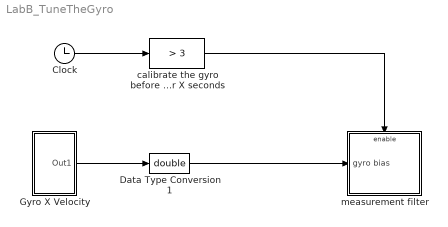
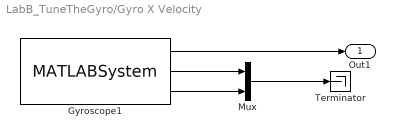
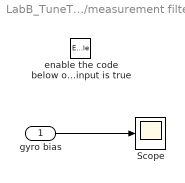
/*
 * Academic License - for use in teaching, academic research, and meeting
 * course requirements at degree granting institutions only.  Not for
 * government, commercial, or other organizational use.
 *
 * File: LabB_TuneTheGyro.c
 *
 * Code generated for Simulink model 'LabB_TuneTheGyro'.
 *
 * Model version                  : 2.1
 * Simulink Coder version         : 9.4 (R2020b) 29-Jul-2020
 * C/C++ source code generated on : Tue Dec 14 13:28:14 2021
 *
 * Target selection: ert.tlc
 * Embedded hardware selection: Atmel->AVR
 * Code generation objectives: Unspecified
 * Validation result: Not run
 */

#include "LabB_TuneTheGyro.h"
#include "LabB_TuneTheGyro_private.h"
#include "LabB_TuneTheGyro_dt.h"

/* Block signals (default storage) */
BlockIO_LabB_TuneTheGyro LabB_TuneTheGyro_B;

/* Block states (default storage) */
D_Work_LabB_TuneTheGyro LabB_TuneTheGyro_DWork;

/* Real-time model */
static RT_MODEL_LabB_TuneTheGyro LabB_TuneTheGyro_M_;
RT_MODEL_LabB_TuneTheGyro *const LabB_TuneTheGyro_M = &LabB_TuneTheGyro_M_;

/* Model step function */
void LabB_TuneTheGyro_step(void)
{
  int16_T out[3];

  /* Reset subsysRan breadcrumbs */
  srClearBC(LabB_TuneTheGyro_DWork.measurementfilter_SubsysRanBC);

  /* MATLABSystem: '<S1>/Gyroscope1' */
  MPU6050Gyro_Read(&out[0]);

  /* DataTypeConversion: '<Root>/Data Type  Conversion1' incorporates:
   *  MATLABSystem: '<S1>/Gyroscope1'
   */
  LabB_TuneTheGyro_B.DataTypeConversion1 = out[0];

  /* Outputs for Enabled SubSystem: '<Root>/measurement filter' incorporates:
   *  EnablePort: '<S3>/enable the code below only when the external boolean input is true '
   */
  /* RelationalOperator: '<S2>/Compare' incorporates:
   *  Clock: '<Root>/Clock'
   *  Constant: '<S2>/Constant'
   */
  if (LabB_TuneTheGyro_M->Timing.t[0] >
      LabB_TuneTheGyro_P.calibratethegyrobeforeXsecondss) {
    srUpdateBC(LabB_TuneTheGyro_DWork.measurementfilter_SubsysRanBC);
  }

  /* End of RelationalOperator: '<S2>/Compare' */
  /* End of Outputs for SubSystem: '<Root>/measurement filter' */

  /* External mode */
  rtExtModeUploadCheckTrigger(2);

  {                                    /* Sample time: [0.0s, 0.0s] */
    rtExtModeUpload(0, (real_T)LabB_TuneTheGyro_M->Timing.t[0]);
  }

  {                                    /* Sample time: [0.01s, 0.0s] */
    rtExtModeUpload(1, (real_T)((LabB_TuneTheGyro_M->Timing.clockTick1) * 0.01));
  }

  /* signal main to stop simulation */
  {                                    /* Sample time: [0.0s, 0.0s] */
    if ((rtmGetTFinal(LabB_TuneTheGyro_M)!=-1) &&
        !((rtmGetTFinal(LabB_TuneTheGyro_M)-LabB_TuneTheGyro_M->Timing.t[0]) >
          LabB_TuneTheGyro_M->Timing.t[0] * (DBL_EPSILON))) {
      rtmSetErrorStatus(LabB_TuneTheGyro_M, "Simulation finished");
    }

    if (rtmGetStopRequested(LabB_TuneTheGyro_M)) {
      rtmSetErrorStatus(LabB_TuneTheGyro_M, "Simulation finished");
    }
  }

  /* Update absolute time for base rate */
  /* The "clockTick0" counts the number of times the code of this task has
   * been executed. The absolute time is the multiplication of "clockTick0"
   * and "Timing.stepSize0". Size of "clockTick0" ensures timer will not
   * overflow during the application lifespan selected.
   */
  LabB_TuneTheGyro_M->Timing.t[0] =
    ((time_T)(++LabB_TuneTheGyro_M->Timing.clockTick0)) *
    LabB_TuneTheGyro_M->Timing.stepSize0;

  {
    /* Update absolute timer for sample time: [0.01s, 0.0s] */
    /* The "clockTick1" counts the number of times the code of this task has
     * been executed. The resolution of this integer timer is 0.01, which is the step size
     * of the task. Size of "clockTick1" ensures timer will not overflow during the
     * application lifespan selected.
     */
    LabB_TuneTheGyro_M->Timing.clockTick1++;
  }
}
